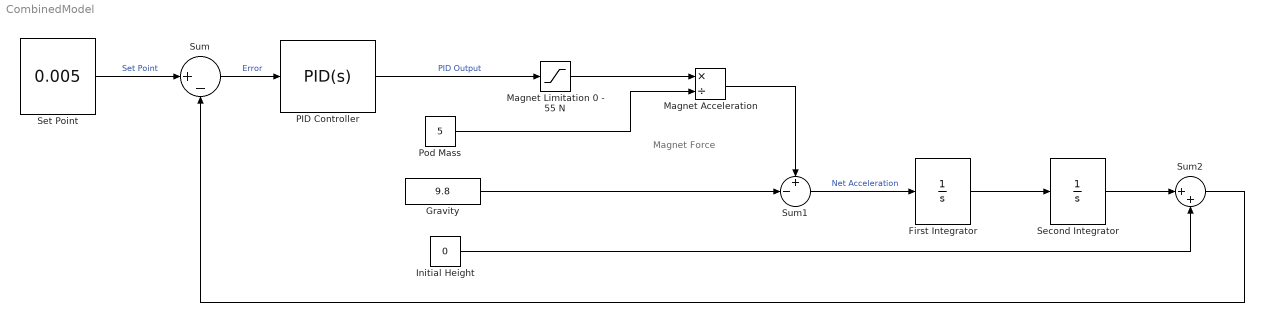
/*
 * CombinedModel.cpp
 *
 * Primary and Secondary School License - for use in teaching and meeting
 * course requirements at primary and secondary schools only.  Not for
 * government, commercial, university, or other organizational use.
 *
 * Code generation for model "CombinedModel".
 *
 * Model version              : 1.64
 * Simulink Coder version : 9.2 (R2019b) 18-Jul-2019
 * C++ source code generated on : Sat Mar 28 00:12:30 2020
 *
 * Target selection: grt.tlc
 * Note: GRT includes extra infrastructure and instrumentation for prototyping
 * Embedded hardware selection: Intel->x86-64 (Windows64)
 * Code generation objective: Debugging
 * Validation result: Not run
 */

#include "CombinedModel.h"
#include "CombinedModel_private.h"

/*
 * This function updates continuous states using the ODE3 fixed-step
 * solver algorithm
 */
void CombinedModelModelClass::rt_ertODEUpdateContinuousStates(RTWSolverInfo *si )
{
  /* Solver Matrices */
  static const real_T rt_ODE3_A[3] = {
    1.0/2.0, 3.0/4.0, 1.0
  };

  static const real_T rt_ODE3_B[3][3] = {
    { 1.0/2.0, 0.0, 0.0 },

    { 0.0, 3.0/4.0, 0.0 },

    { 2.0/9.0, 1.0/3.0, 4.0/9.0 }
  };

  time_T t = rtsiGetT(si);
  time_T tnew = rtsiGetSolverStopTime(si);
  time_T h = rtsiGetStepSize(si);
  real_T *x = rtsiGetContStates(si);
  ODE3_IntgData *id = static_cast<ODE3_IntgData *>(rtsiGetSolverData(si));
  real_T *y = id->y;
  real_T *f0 = id->f[0];
  real_T *f1 = id->f[1];
  real_T *f2 = id->f[2];
  real_T hB[3];
  int_T i;
  int_T nXc = 4;
  rtsiSetSimTimeStep(si,MINOR_TIME_STEP);

  /* Save the state values at time t in y, we'll use x as ynew. */
  (void) std::memcpy(y, x,
                     static_cast<uint_T>(nXc)*sizeof(real_T));

  /* Assumes that rtsiSetT and ModelOutputs are up-to-date */
  /* f0 = f(t,y) */
  rtsiSetdX(si, f0);
  CombinedModel_derivatives();

  /* f(:,2) = feval(odefile, t + hA(1), y + f*hB(:,1), args(:)(*)); */
  hB[0] = h * rt_ODE3_B[0][0];
  for (i = 0; i < nXc; i++) {
    x[i] = y[i] + (f0[i]*hB[0]);
  }

  rtsiSetT(si, t + h*rt_ODE3_A[0]);
  rtsiSetdX(si, f1);
  this->step();
  CombinedModel_derivatives();

  /* f(:,3) = feval(odefile, t + hA(2), y + f*hB(:,2), args(:)(*)); */
  for (i = 0; i <= 1; i++) {
    hB[i] = h * rt_ODE3_B[1][i];
  }

  for (i = 0; i < nXc; i++) {
    x[i] = y[i] + (f0[i]*hB[0] + f1[i]*hB[1]);
  }

  rtsiSetT(si, t + h*rt_ODE3_A[1]);
  rtsiSetdX(si, f2);
  this->step();
  CombinedModel_derivatives();

  /* tnew = t + hA(3);
     ynew = y + f*hB(:,3); */
  for (i = 0; i <= 2; i++) {
    hB[i] = h * rt_ODE3_B[2][i];
  }

  for (i = 0; i < nXc; i++) {
    x[i] = y[i] + (f0[i]*hB[0] + f1[i]*hB[1] + f2[i]*hB[2]);
  }

  rtsiSetT(si, tnew);
  rtsiSetSimTimeStep(si,MAJOR_TIME_STEP);
}

/* Model step function */
void CombinedModelModelClass::step()
{
  real_T u0;
  real_T u1;
  real_T u2;
  if (rtmIsMajorTimeStep((&CombinedModel_M))) {
    /* set solver stop time */
    if (!((&CombinedModel_M)->Timing.clockTick0+1)) {
      rtsiSetSolverStopTime(&(&CombinedModel_M)->solverInfo, (((&CombinedModel_M)
        ->Timing.clockTickH0 + 1) * (&CombinedModel_M)->Timing.stepSize0 *
        4294967296.0));
    } else {
      rtsiSetSolverStopTime(&(&CombinedModel_M)->solverInfo, (((&CombinedModel_M)
        ->Timing.clockTick0 + 1) * (&CombinedModel_M)->Timing.stepSize0 +
        (&CombinedModel_M)->Timing.clockTickH0 * (&CombinedModel_M)
        ->Timing.stepSize0 * 4294967296.0));
    }
  }                                    /* end MajorTimeStep */

  /* Update absolute time of base rate at minor time step */
  if (rtmIsMinorTimeStep((&CombinedModel_M))) {
    (&CombinedModel_M)->Timing.t[0] = rtsiGetT(&(&CombinedModel_M)->solverInfo);
  }

  /* Integrator: '<Root>/First Integrator' */
  CombinedModel_B.FirstIntegrator = CombinedModel_X.FirstIntegrator_CSTATE;

  /* Integrator: '<Root>/Second Integrator' */
  CombinedModel_B.SecondIntegrator = CombinedModel_X.SecondIntegrator_CSTATE;

  /* Sum: '<Root>/Sum2' incorporates:
   *  Constant: '<Root>/Initial Height'
   */
  CombinedModel_B.Sum2 = CombinedModel_B.SecondIntegrator +
    CombinedModel_P.InitialHeight_Value;

  /* Sum: '<Root>/Sum' incorporates:
   *  Constant: '<Root>/Set Point'
   */
  CombinedModel_B.Error = CombinedModel_P.SetPoint_Value - CombinedModel_B.Sum2;

  /* Gain: '<S36>/Proportional Gain' */
  CombinedModel_B.ProportionalGain = CombinedModel_P.PIDController_P *
    CombinedModel_B.Error;

  /* Integrator: '<S31>/Integrator' */
  CombinedModel_B.Integrator = CombinedModel_X.Integrator_CSTATE;

  /* Gain: '<S25>/Derivative Gain' */
  CombinedModel_B.DerivativeGain = CombinedModel_P.PIDController_D *
    CombinedModel_B.Error;

  /* Integrator: '<S26>/Filter' */
  CombinedModel_B.Filter = CombinedModel_X.Filter_CSTATE;

  /* Sum: '<S26>/SumD' */
  CombinedModel_B.SumD = CombinedModel_B.DerivativeGain - CombinedModel_B.Filter;

  /* Gain: '<S34>/Filter Coefficient' */
  CombinedModel_B.FilterCoefficient = CombinedModel_P.PIDController_N *
    CombinedModel_B.SumD;

  /* Sum: '<S40>/Sum' */
  CombinedModel_B.Sum = (CombinedModel_B.ProportionalGain +
    CombinedModel_B.Integrator) + CombinedModel_B.FilterCoefficient;

  /* Saturate: '<Root>/Magnet Limitation 0 - 55 N' */
  u0 = CombinedModel_B.Sum;
  u1 = CombinedModel_P.MagnetLimitation055N_LowerSat;
  u2 = CombinedModel_P.MagnetLimitation055N_UpperSat;
  if (u0 > u2) {
    CombinedModel_B.MagnetLimitation055N = u2;
  } else if (u0 < u1) {
    CombinedModel_B.MagnetLimitation055N = u1;
  } else {
    CombinedModel_B.MagnetLimitation055N = u0;
  }

  /* End of Saturate: '<Root>/Magnet Limitation 0 - 55 N' */

  /* Product: '<Root>/Magnet Acceleration' incorporates:
   *  Constant: '<Root>/Pod Mass'
   */
  CombinedModel_B.MagnetAcceleration = CombinedModel_B.MagnetLimitation055N /
    CombinedModel_P.PodMass_Value;

  /* Gain: '<S28>/Integral Gain' */
  CombinedModel_B.IntegralGain = CombinedModel_P.PIDController_I *
    CombinedModel_B.Error;

  /* Sum: '<Root>/Sum1' incorporates:
   *  Constant: '<Root>/Gravity'
   */
  CombinedModel_B.NetAcceleration = CombinedModel_B.MagnetAcceleration -
    CombinedModel_P.Gravity_Value;
  if (rtmIsMajorTimeStep((&CombinedModel_M))) {
    /* Matfile logging */
    rt_UpdateTXYLogVars((&CombinedModel_M)->rtwLogInfo, ((&CombinedModel_M)
      ->Timing.t));
  }                                    /* end MajorTimeStep */

  if (rtmIsMajorTimeStep((&CombinedModel_M))) {
    /* signal main to stop simulation */
    {                                  /* Sample time: [0.0s, 0.0s] */
      if ((rtmGetTFinal((&CombinedModel_M))!=-1) &&
          !((rtmGetTFinal((&CombinedModel_M))-((((&CombinedModel_M)
               ->Timing.clockTick1+(&CombinedModel_M)->Timing.clockTickH1*
               4294967296.0)) * 0.4)) > ((((&CombinedModel_M)->Timing.clockTick1
              +(&CombinedModel_M)->Timing.clockTickH1* 4294967296.0)) * 0.4) *
            (DBL_EPSILON))) {
        rtmSetErrorStatus((&CombinedModel_M), "Simulation finished");
      }
    }

    rt_ertODEUpdateContinuousStates(&(&CombinedModel_M)->solverInfo);

    /* Update absolute time for base rate */
    /* The "clockTick0" counts the number of times the code of this task has
     * been executed. The absolute time is the multiplication of "clockTick0"
     * and "Timing.stepSize0". Size of "clockTick0" ensures timer will not
     * overflow during the application lifespan selected.
     * Timer of this task consists of two 32 bit unsigned integers.
     * The two integers represent the low bits Timing.clockTick0 and the high bits
     * Timing.clockTickH0. When the low bit overflows to 0, the high bits increment.
     */
    if (!(++(&CombinedModel_M)->Timing.clockTick0)) {
      ++(&CombinedModel_M)->Timing.clockTickH0;
    }

    (&CombinedModel_M)->Timing.t[0] = rtsiGetSolverStopTime(&(&CombinedModel_M
      )->solverInfo);

    {
      /* Update absolute timer for sample time: [0.4s, 0.0s] */
      /* The "clockTick1" counts the number of times the code of this task has
       * been executed. The resolution of this integer timer is 0.4, which is the step size
       * of the task. Size of "clockTick1" ensures timer will not overflow during the
       * application lifespan selected.
       * Timer of this task consists of two 32 bit unsigned integers.
       * The two integers represent the low bits Timing.clockTick1 and the high bits
       * Timing.clockTickH1. When the low bit overflows to 0, the high bits increment.
       */
      (&CombinedModel_M)->Timing.clockTick1++;
      if (!(&CombinedModel_M)->Timing.clockTick1) {
        (&CombinedModel_M)->Timing.clockTickH1++;
      }
    }
  }                                    /* end MajorTimeStep */
}
